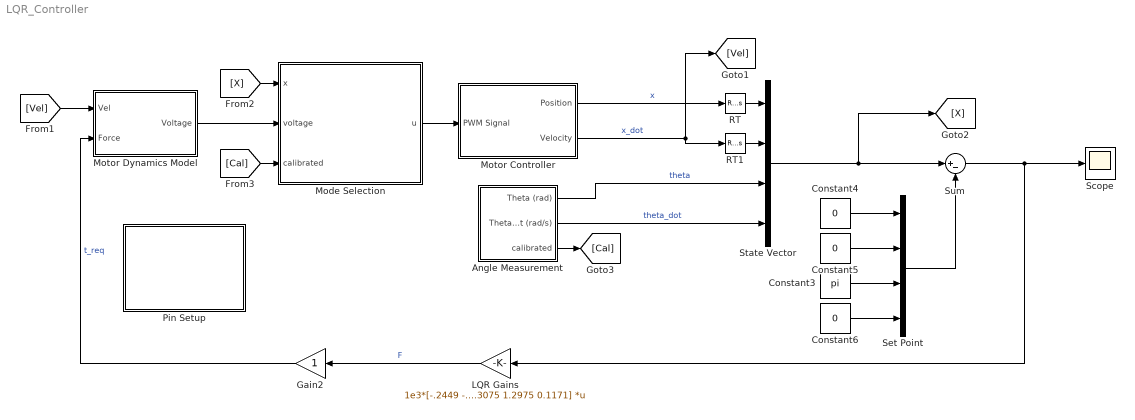
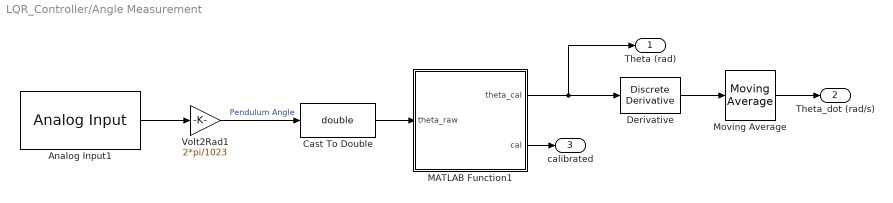
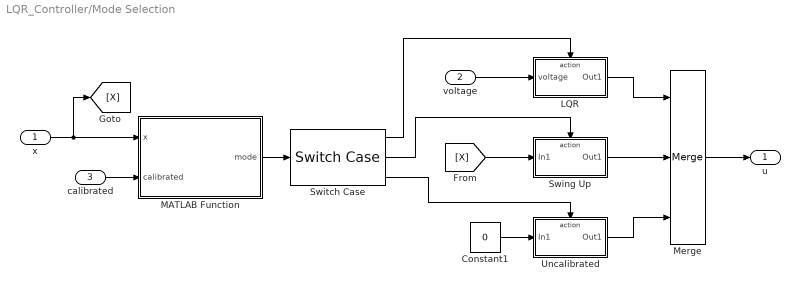
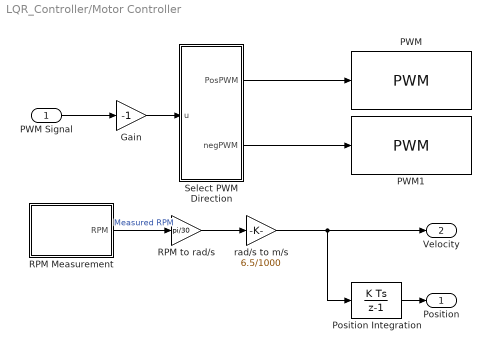
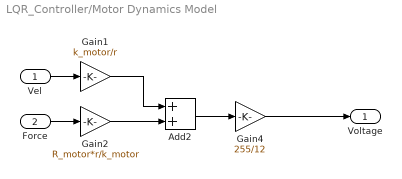
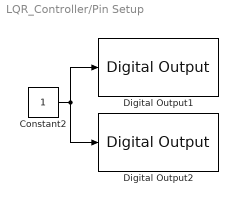
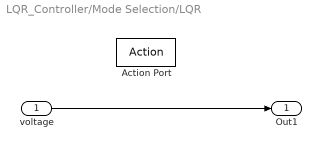
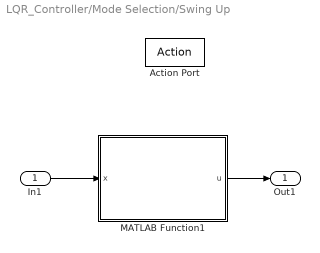
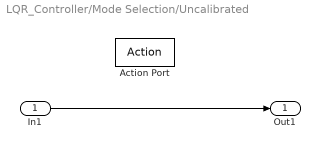
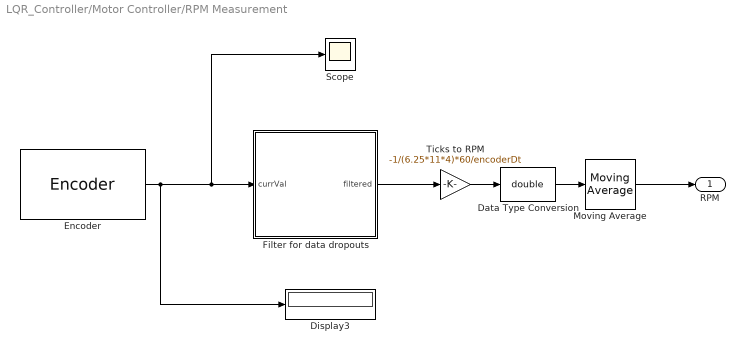
== matlab function LQR_Controller/Motor Controller/Select PWM Direction ==
function [PosPWM, negPWM] = PWMDir(u)
    if u > 0
        PosPWM = u;
        negPWM = 0;
    else
        negPWM = -u;
        PosPWM = 0;
    end
end

== matlab function LQR_Controller/Motor Controller/RPM Measurement/Filter for data dropouts ==
function filtered = filterEncoder(currVal)
%#codegen

persistent prevVal

% Initialize on first call
if isempty(prevVal)
    prevVal = currVal;
end

% Dropout detection
threshold = 200;  % Adjust based on your system

if abs(currVal - prevVal) > threshold
    % Bad reading: keep previous good value
    filtered = prevVal;
elseif abs(currVal) > 500
    % this is also a bad reading, nothing should be greater than this
    filtered = prevVal;
else
    % Good reading: update and pass through
    filtered = currVal;
    prevVal = currVal;
end

== matlab function LQR_Controller/Mode Selection/MATLAB Function ==
function mode = ControllerMode(x, calibrated)
% the controller mode selection acts on the state of the pendulum. In the
% standard stable configuration, the controller will center and perform a
% swing up. Once this is achieved, the controller moves into the LQR
% regulator for upright control.
%
% Inputs:
% x - full state vector [4x1]
% voltage - voltage control input [V]
% calibrated - calibration flag boolean

% demux the input state:

pos = x(1);
vel = x(2);
theta = x(3);
omega = x(4);

% if it's calibrated, continue
if calibrated
    % If it is close enough to the vertical position, run the LQR
    if abs(theta-pi) < 0.15 && abs(omega) < 1.5
        mode = 1;        
    else % if it is close enough to the downward position, run the swing up controller
        mode = 2;
    end
else
    mode = 3;
end

end

== matlab function LQR_Controller/Angle Measurement/MATLAB Function1 ==
function [theta_cal, cal] = calibrateAngle(theta_raw)
% Calibrates angle by averaging first N samples at startup,
% then subtracting the average offset and adding pi.
%
% Inputs:
%  - theta_raw : current raw angle measurement
%  - reset     : boolean flag to reset calibration (true at startup)
%
% Output:
%  - theta_cal : calibrated angle (aligned so initial avg = pi)

    persistent sample_count theta_sum theta0 calibrated N

    if isempty(calibrated)
        % Initialization on reset
        N = 250;                % number of samples to average
        sample_count = 0;
        theta_sum = 0;
        theta0 = 0;
        calibrated = false;
        cal = false;
    end

    if ~calibrated
        % Accumulate samples for averaging
        sample_count = sample_count + 1;
        theta_sum = theta_sum + theta_raw;
        
        if sample_count >= N
            theta0 = theta_sum / N;  % average offset
            calibrated = true;
            cal = true;
        end
    end

    if calibrated
        % After calibration, subtract offset and add pi
        theta_cal = theta_raw - theta0 + 2*pi;
        cal = true;
    else
        % During calibration phase, output raw angle
        theta_cal = theta_raw + 1/2*pi; 
        cal = false;
    end
end

== matlab function LQR_Controller/Mode Selection/Swing Up/MATLAB Function1 ==
function u = SwingUpController(x)

% demux the input state:
pos = x(1);
vel = x(2);
theta = x(3);
omega = x(4);

persistent thetaMax

if isempty(thetaMax)
    thetaMax = theta;
end

T = 1.1; % period of pendulum
t = 0.05; % acceleration time of pendulum

alphaBest = thetaMax * sin(2*pi/T*t);

u = 0;

end

/*
 * LQR_Controller.c
 *
 * Academic License - for use in teaching, academic research, and meeting
 * course requirements at degree granting institutions only.  Not for
 * government, commercial, or other organizational use.
 *
 * Code generation for model "LQR_Controller".
 *
 * Model version              : 1.59
 * Simulink Coder version : 25.1 (R2025a) 21-Nov-2024
 * C source code generated on : Mon Oct 27 21:09:59 2025
 *
 * Target selection: ert.tlc
 * Note: GRT includes extra infrastructure and instrumentation for prototyping
 * Embedded hardware selection: Atmel->AVR
 * Code generation objectives: Unspecified
 * Validation result: Not run
 */

#include "LQR_Controller.h"
#include "LQR_Controller_types.h"
#include "rtwtypes.h"
#include <string.h>
#include <math.h>
#include "LQR_Controller_private.h"
#include "rt_nonfinite.h"

/* Block signals (default storage) */
B_LQR_Controller_T LQR_Controller_B;

/* Block states (default storage) */
DW_LQR_Controller_T LQR_Controller_DW;

/* Real-time model */
static RT_MODEL_LQR_Controller_T LQR_Controller_M_;
RT_MODEL_LQR_Controller_T *const LQR_Controller_M = &LQR_Controller_M_;

/* Forward declaration for local functions */
static void LQR_Controller_SystemCore_setup(dsp_simulink_MovingAverage_LQ_T *obj);
static void LQR_Controll_SystemCore_setup_p(dsp_simulink_MovingAverage_p_T *obj);
static void rate_monotonic_scheduler(void);

/*
 * Set which subrates need to run this base step (base rate always runs).
 * This function must be called prior to calling the model step function
 * in order to remember which rates need to run this base step.  The
 * buffering of events allows for overlapping preemption.
 */
void LQR_Controller_SetEventsForThisBaseStep(boolean_T *eventFlags)
{
  /* Task runs when its counter is zero, computed via rtmStepTask macro */
  eventFlags[1] = ((boolean_T)rtmStepTask(LQR_Controller_M, 1));
  eventFlags[2] = ((boolean_T)rtmStepTask(LQR_Controller_M, 2));
}

/*
 *         This function updates active task flag for each subrate
 *         and rate transition flags for tasks that exchange data.
 *         The function assumes rate-monotonic multitasking scheduler.
 *         The function must be called at model base rate so that
 *         the generated code self-manages all its subrates and rate
 *         transition flags.
 */
static void rate_monotonic_scheduler(void)
{
  /* To ensure a deterministic data transfer between two rates,
   * data is transferred at the priority of a fast task and the frequency
   * of the slow task.  The following flags indicate when the data transfer
   * happens.  That is, a rate interaction flag is set true when both rates
   * will run, and false otherwise.
   */

  /* tid 1 shares data with slower tid rate: 2 */
  if (LQR_Controller_M->Timing.TaskCounters.TID[1] == 0) {
    LQR_Controller_M->Timing.RateInteraction.TID1_2 =
      (LQR_Controller_M->Timing.TaskCounters.TID[2] == 0);
  }

  /* Compute which subrates run during the next base time step.  Subrates
   * are an integer multiple of the base rate counter.  Therefore, the subtask
   * counter is reset when it reaches its limit (zero means run).
   */
  (LQR_Controller_M->Timing.TaskCounters.TID[1])++;
  if ((LQR_Controller_M->Timing.TaskCounters.TID[1]) > 1) {/* Sample time: [0.007s, 0.0s] */
    LQR_Controller_M->Timing.TaskCounters.TID[1] = 0;
  }

  (LQR_Controller_M->Timing.TaskCounters.TID[2])++;
  if ((LQR_Controller_M->Timing.TaskCounters.TID[2]) > 3) {/* Sample time: [0.014s, 0.0s] */
    LQR_Controller_M->Timing.TaskCounters.TID[2] = 0;
  }
}

static void LQR_Controller_SystemCore_setup(dsp_simulink_MovingAverage_LQ_T *obj)
{
  obj->isInitialized = 1L;

  /* Start for MATLABSystem: '<S1>/Moving Average' */
  obj->NumChannels = 1L;
  obj->FrameLength = 1L;
  obj->pCumSum = 0.0;
  memset(&obj->pCumSumRev[0], 0, 11U * sizeof(real_T));
  obj->pCumRevIndex = 1.0;
  obj->pModValueRev = 0.0;
  obj->isSetupComplete = true;
  obj->TunablePropsChanged = false;
}

static void LQR_Controll_SystemCore_setup_p(dsp_simulink_MovingAverage_p_T *obj)
{
  obj->isInitialized = 1L;

  /* Start for MATLABSystem: '<S13>/Moving Average' */
  obj->NumChannels = 1L;
  obj->FrameLength = 1L;
  obj->pCumSum = 0.0;
  obj->pCumSumRev[0] = 0.0;
  obj->pCumSumRev[1] = 0.0;
  obj->pCumSumRev[2] = 0.0;
  obj->pCumRevIndex = 1.0;
  obj->pModValueRev = 0.0;
  obj->isSetupComplete = true;
  obj->TunablePropsChanged = false;
}

real_T rt_roundd_snf(real_T u)
{
  real_T y;
  if (fabs(u) < 4.503599627370496E+15) {
    if (u >= 0.5) {
      y = floor(u + 0.5);
    } else if (u > -0.5) {
      y = u * 0.0;
    } else {
      y = ceil(u - 0.5);
    }
  } else {
    y = u;
  }

  return y;
}

/* Model step function for TID0 */
void LQR_Controller_step0(void)        /* Sample time: [0.0035s, 0.0s] */
{
  {                                    /* Sample time: [0.0035s, 0.0s] */
    rate_monotonic_scheduler();
  }
}

/* Model step function for TID1 */
void LQR_Controller_step1(void)        /* Sample time: [0.007s, 0.0s] */
{
  real_T Diff;
  real_T csum;
  real_T rtb_theta_cal;
  real_T z;
  uint32_T rtb_PendulumAngle;
  int16_T rtb_mode;
  uint16_T b_varargout_1;
  uint8_T tmp_0;
  boolean_T guard1;
  boolean_T rtb_cal;
  boolean_T tmp;

  /* RateTransition: '<Root>/RT' incorporates:
   *  Concatenate: '<Root>/State Vector'
   *  RateTransition generated from: '<S4>/Add2'
   */
  tmp = LQR_Controller_M->Timing.RateInteraction.TID1_2;
  if (tmp) {
    LQR_Controller_B.StateVector[0] = LQR_Controller_DW.RT_Buffer0;

    /* RateTransition: '<Root>/RT1' incorporates:
     *  Concatenate: '<Root>/State Vector'
     */
    LQR_Controller_B.StateVector[1] = LQR_Controller_DW.RT1_Buffer0;
  }

  /* End of RateTransition: '<Root>/RT' */

  /* MATLABSystem: '<S1>/Analog Input1' */
  LQR_Controller_DW.obj_g.AnalogInDriverObj.MW_ANALOGIN_HANDLE =
    MW_AnalogIn_GetHandle(14UL);
  MW_AnalogInSingle_ReadResult
    (LQR_Controller_DW.obj_g.AnalogInDriverObj.MW_ANALOGIN_HANDLE,
     &b_varargout_1, MW_ANALOGIN_UINT16);

  /* Gain: '<S1>/Volt2Rad1' incorporates:
   *  MATLABSystem: '<S1>/Analog Input1'
   * */
  rtb_PendulumAngle = (uint32_T)LQR_Controller_P.Volt2Rad1_Gain * b_varargout_1;

  /* MATLAB Function: '<S1>/MATLAB Function1' incorporates:
   *  DataTypeConversion: '<S1>/Cast To Double'
   *  Gain: '<S1>/Volt2Rad1'
   */
  guard1 = false;
  if (!LQR_Controller_DW.calibrated) {
    LQR_Controller_DW.sample_count++;

    /* DataTypeConversion: '<S1>/Cast To Double' incorporates:
     *  Gain: '<S1>/Volt2Rad1'
     */
    rtb_theta_cal = (real_T)rtb_PendulumAngle * 1.1920928955078125E-7;
    LQR_Controller_DW.theta_sum += rtb_theta_cal;
    if (LQR_Controller_DW.sample_count >= LQR_Controller_DW.N) {
      LQR_Controller_DW.theta0 = LQR_Controller_DW.theta_sum /
        LQR_Controller_DW.N;
      LQR_Controller_DW.calibrated = true;
      guard1 = true;
    } else {
      rtb_theta_cal += 1.5707963267948966;
      rtb_cal = false;
    }
  } else {
    guard1 = true;
  }

  if (guard1) {
    rtb_theta_cal = ((real_T)rtb_PendulumAngle * 1.1920928955078125E-7 -
                     LQR_Controller_DW.theta0) + 6.2831853071795862;
    rtb_cal = true;
  }

  /* End of MATLAB Function: '<S1>/MATLAB Function1' */

  /* SignalConversion generated from: '<Root>/State Vector' incorporates:
   *  Concatenate: '<Root>/State Vector'
   */
  LQR_Controller_B.StateVector[2] = rtb_theta_cal;

  /* SampleTimeMath: '<S6>/TSamp'
   *
   * About '<S6>/TSamp':
   *  y = u * K where K = 1 / ( w * Ts )
   *   */
  rtb_theta_cal *= LQR_Controller_P.TSamp_WtEt;

  /* Sum: '<S6>/Diff' incorporates:
   *  UnitDelay: '<S6>/UD'
   */
  Diff = rtb_theta_cal - LQR_Controller_DW.UD_DSTATE;

  /* MATLABSystem: '<S1>/Moving Average' */
  if (LQR_Controller_DW.obj.TunablePropsChanged) {
    LQR_Controller_DW.obj.TunablePropsChanged = false;
  }

  z = 0.0;

  /* Concatenate: '<Root>/State Vector' incorporates:
   *  MATLABSystem: '<S1>/Moving Average'
   *  SignalConversion generated from: '<S1>/Moving Average'
   */
  LQR_Controller_B.StateVector[3] = 0.0;

  /* MATLABSystem: '<S1>/Moving Average' */
  csum = LQR_Controller_DW.obj.pCumSum + Diff;
  if (LQR_Controller_DW.obj.pModValueRev == 0.0) {
    z = LQR_Controller_DW.obj.pCumSumRev[(int16_T)
      LQR_Controller_DW.obj.pCumRevIndex - 1] + csum;
  }

  LQR_Controller_DW.obj.pCumSumRev[(int16_T)LQR_Controller_DW.obj.pCumRevIndex -
    1] = Diff;
  if (LQR_Controller_DW.obj.pCumRevIndex != 11.0) {
    Diff = LQR_Controller_DW.obj.pCumRevIndex + 1.0;
  } else {
    Diff = 1.0;
    csum = 0.0;
    for (rtb_mode = 9; rtb_mode >= 0; rtb_mode--) {
      LQR_Controller_DW.obj.pCumSumRev[rtb_mode] +=
        LQR_Controller_DW.obj.pCumSumRev[rtb_mode + 1];
    }
  }

  if (LQR_Controller_DW.obj.pModValueRev == 0.0) {
    /* Concatenate: '<Root>/State Vector' incorporates:
     *  SignalConversion generated from: '<S1>/Moving Average'
     */
    LQR_Controller_B.StateVector[3] = z / 12.0;
  }

  LQR_Controller_DW.obj.pCumSum = csum;
  LQR_Controller_DW.obj.pCumRevIndex = Diff;
  if (LQR_Controller_DW.obj.pModValueRev > 0.0) {
    LQR_Controller_DW.obj.pModValueRev--;
  } else {
    LQR_Controller_DW.obj.pModValueRev = 0.0;
  }

  /* Constant: '<Root>/Constant4' */
  LQR_Controller_B.SetPoint[0] = LQR_Controller_P.Constant4_Value;

  /* Constant: '<Root>/Constant5' */
  LQR_Controller_B.SetPoint[1] = LQR_Controller_P.Constant5_Value;

  /* Constant: '<Root>/Constant3' */
  LQR_Controller_B.SetPoint[2] = LQR_Controller_P.Constant3_Value;

  /* Constant: '<Root>/Constant6' */
  LQR_Controller_B.SetPoint[3] = LQR_Controller_P.Constant6_Value;

  /* Sum: '<Root>/Sum' */
  LQR_Controller_B.SetPoint[0] = LQR_Controller_B.StateVector[0] -
    LQR_Controller_B.SetPoint[0];
  LQR_Controller_B.SetPoint[1] = LQR_Controller_B.StateVector[1] -
    LQR_Controller_B.SetPoint[1];
  LQR_Controller_B.SetPoint[2] = LQR_Controller_B.StateVector[2] -
    LQR_Controller_B.SetPoint[2];
  LQR_Controller_B.SetPoint[3] = LQR_Controller_B.StateVector[3] -
    LQR_Controller_B.SetPoint[3];

  /* MATLAB Function: '<S2>/MATLAB Function' */
  if (rtb_cal) {
    if ((fabs(LQR_Controller_B.StateVector[2] - 3.1415926535897931) < 0.15) &&
        (fabs(LQR_Controller_B.StateVector[3]) < 1.5)) {
      rtb_mode = 1;
    } else {
      rtb_mode = 2;
    }
  } else {
    rtb_mode = 3;
  }

  /* End of MATLAB Function: '<S2>/MATLAB Function' */

  /* RateTransition generated from: '<S4>/Add2' */
  if (tmp) {
    /* RateTransition generated from: '<S4>/Add2' */
    LQR_Controller_B.TmpRTBAtAdd2Inport1 =
      LQR_Controller_DW.TmpRTBAtAdd2Inport1_Buffer0;
  }

  /* SwitchCase: '<S2>/Switch Case' */
  switch ((int32_T)rtb_mode) {
   case 1L:
    /* Outputs for IfAction SubSystem: '<S2>/LQR' incorporates:
     *  ActionPort: '<S8>/Action Port'
     */
    /* SignalConversion generated from: '<S8>/voltage' incorporates:
     *  Gain: '<Root>/Gain2'
     *  Gain: '<Root>/LQR Gains'
     *  Gain: '<S4>/Gain2'
     *  Gain: '<S4>/Gain4'
     *  Sum: '<S4>/Add2'
     */
    z = ((((LQR_Controller_P.LQRGains_Gain[0] * LQR_Controller_B.SetPoint[0] +
            LQR_Controller_P.LQRGains_Gain[1] * LQR_Controller_B.SetPoint[1]) +
           LQR_Controller_P.LQRGains_Gain[2] * LQR_Controller_B.SetPoint[2]) +
          LQR_Controller_P.LQRGains_Gain[3] * LQR_Controller_B.SetPoint[3]) *
         LQR_Controller_P.Gain2_Gain * (LQR_Controller_P.R_motor *
          LQR_Controller_P.r / LQR_Controller_P.k_motor) +
         LQR_Controller_B.TmpRTBAtAdd2Inport1) * LQR_Controller_P.Gain4_Gain;

    /* End of Outputs for SubSystem: '<S2>/LQR' */
    break;

   case 2L:
    /* Outputs for IfAction SubSystem: '<S2>/Swing Up' incorporates:
     *  ActionPort: '<S10>/Action Port'
     */
    /* MATLAB Function: '<S10>/MATLAB Function1' */
    LQR_Controller_DW.thetaMax_not_empty = true;

    /* SignalConversion generated from: '<S10>/Out1' incorporates:
     *  MATLAB Function: '<S10>/MATLAB Function1'
     */
    z = 0.0;

    /* End of Outputs for SubSystem: '<S2>/Swing Up' */
    break;

   default:
    /* Outputs for IfAction SubSystem: '<S2>/Uncalibrated' incorporates:
     *  ActionPort: '<S11>/Action Port'
     */
    /* SignalConversion generated from: '<S11>/In1' incorporates:
     *  Constant: '<S2>/Constant1'
     */
    z = LQR_Controller_P.Constant1_Value;

    /* End of Outputs for SubSystem: '<S2>/Uncalibrated' */
    break;
  }

  /* End of SwitchCase: '<S2>/Switch Case' */

  /* Gain: '<S3>/Gain' */
  z *= LQR_Controller_P.Gain_Gain;

  /* MATLAB Function: '<S3>/Select PWM Direction' */
  if (z > 0.0) {
    csum = 0.0;
  } else {
    csum = -z;
    z = 0.0;
  }

  /* End of MATLAB Function: '<S3>/Select PWM Direction' */

  /* MATLABSystem: '<S3>/PWM' */
  LQR_Controller_DW.obj_d.PWMDriverObj.MW_PWM_HANDLE = MW_PWM_GetHandle(5UL);

  /* Start for MATLABSystem: '<S3>/PWM' */
  if (!(z <= 255.0)) {
    z = 255.0;
  }

  /* MATLABSystem: '<S3>/PWM' */
  MW_PWM_SetDutyCycle(LQR_Controller_DW.obj_d.PWMDriverObj.MW_PWM_HANDLE, z);

  /* MATLABSystem: '<S3>/PWM1' */
  LQR_Controller_DW.obj_e.PWMDriverObj.MW_PWM_HANDLE = MW_PWM_GetHandle(6UL);

  /* Start for MATLABSystem: '<S3>/PWM1' */
  if (!(csum <= 255.0)) {
    csum = 255.0;
  }

  /* MATLABSystem: '<S3>/PWM1' */
  MW_PWM_SetDutyCycle(LQR_Controller_DW.obj_e.PWMDriverObj.MW_PWM_HANDLE, csum);

  /* MATLABSystem: '<S5>/Digital Output1' incorporates:
   *  Constant: '<S5>/Constant2'
   */
  z = rt_roundd_snf(LQR_Controller_P.Constant2_Value);
  if (z < 256.0) {
    if (z >= 0.0) {
      tmp_0 = (uint8_T)z;
    } else {
      tmp_0 = 0U;
    }
  } else {
    tmp_0 = MAX_uint8_T;
  }

  writeDigitalPin(7, tmp_0);

  /* End of MATLABSystem: '<S5>/Digital Output1' */

  /* MATLABSystem: '<S5>/Digital Output2' */
  if (z < 256.0) {
    if (z >= 0.0) {
      tmp_0 = (uint8_T)z;
    } else {
      tmp_0 = 0U;
    }
  } else {
    tmp_0 = MAX_uint8_T;
  }

  writeDigitalPin(8, tmp_0);

  /* End of MATLABSystem: '<S5>/Digital Output2' */

  /* Update for UnitDelay: '<S6>/UD' */
  LQR_Controller_DW.UD_DSTATE = rtb_theta_cal;
}

/* Model step function for TID2 */
void LQR_Controller_step2(void)        /* Sample time: [0.014s, 0.0s] */
{
  real_T csum;
  real_T cumRevIndex;
  real_T rtb_Gain1;
  real_T z;
  int32_T qY;
  int32_T rtb_Encoder;

  /* MATLABSystem: '<S13>/Encoder' */
  if (LQR_Controller_DW.obj_l.TunablePropsChanged) {
    LQR_Controller_DW.obj_l.TunablePropsChanged = false;
  }

  MW_EncoderRead(LQR_Controller_DW.obj_l.Index, &rtb_Encoder);
  MW_EncoderReset(LQR_Controller_DW.obj_l.Index);

  /* End of MATLABSystem: '<S13>/Encoder' */
  /* MATLAB Function: '<S13>/Filter for data dropouts' */
  if (!LQR_Controller_DW.prevVal_not_empty) {
    LQR_Controller_DW.prevVal = rtb_Encoder;
    LQR_Controller_DW.prevVal_not_empty = true;
  }

  if ((rtb_Encoder >= 0L) && (LQR_Controller_DW.prevVal < rtb_Encoder -
       MAX_int32_T)) {
    qY = MAX_int32_T;
  } else if ((rtb_Encoder < 0L) && (LQR_Controller_DW.prevVal > rtb_Encoder -
              MIN_int32_T)) {
    qY = MIN_int32_T;
  } else {
    qY = rtb_Encoder - LQR_Controller_DW.prevVal;
  }

  if (qY < 0L) {
    if (qY <= MIN_int32_T) {
      qY = MAX_int32_T;
    } else {
      qY = -qY;
    }
  }

  if (qY > 200L) {
    rtb_Encoder = LQR_Controller_DW.prevVal;
  } else {
    if (rtb_Encoder < 0L) {
      if (rtb_Encoder <= MIN_int32_T) {
        qY = MAX_int32_T;
      } else {
        qY = -rtb_Encoder;
      }
    } else {
      qY = rtb_Encoder;
    }

    if (qY > 500L) {
      rtb_Encoder = LQR_Controller_DW.prevVal;
    } else {
      LQR_Controller_DW.prevVal = rtb_Encoder;
    }
  }

  /* End of MATLAB Function: '<S13>/Filter for data dropouts' */

  /* MATLABSystem: '<S13>/Moving Average' */
  if (LQR_Controller_DW.obj_m.TunablePropsChanged) {
    LQR_Controller_DW.obj_m.TunablePropsChanged = false;
  }

  z = 0.0;
  rtb_Gain1 = 0.0;

  /* DataTypeConversion: '<S13>/Data Type Conversion' incorporates:
   *  Gain: '<S13>/Ticks to RPM'
   */
  cumRevIndex = (real_T)((int64_T)LQR_Controller_P.TickstoRPM_Gain * rtb_Encoder)
    * 7.4505805969238281E-9;

  /* MATLABSystem: '<S13>/Moving Average' incorporates:
   *  DataTypeConversion: '<S13>/Data Type Conversion'
   */
  csum = cumRevIndex + LQR_Controller_DW.obj_m.pCumSum;
  if (LQR_Controller_DW.obj_m.pModValueRev == 0.0) {
    z = LQR_Controller_DW.obj_m.pCumSumRev[(int16_T)
      LQR_Controller_DW.obj_m.pCumRevIndex - 1] + csum;
  }

  LQR_Controller_DW.obj_m.pCumSumRev[(int16_T)
    LQR_Controller_DW.obj_m.pCumRevIndex - 1] = cumRevIndex;
  if (LQR_Controller_DW.obj_m.pCumRevIndex != 3.0) {
    cumRevIndex = LQR_Controller_DW.obj_m.pCumRevIndex + 1.0;
  } else {
    cumRevIndex = 1.0;
    csum = 0.0;
    LQR_Controller_DW.obj_m.pCumSumRev[1] += LQR_Controller_DW.obj_m.pCumSumRev
      [2];
    LQR_Controller_DW.obj_m.pCumSumRev[0] += LQR_Controller_DW.obj_m.pCumSumRev
      [1];
  }

  if (LQR_Controller_DW.obj_m.pModValueRev == 0.0) {
    rtb_Gain1 = z / 4.0;
  }

  LQR_Controller_DW.obj_m.pCumSum = csum;
  LQR_Controller_DW.obj_m.pCumRevIndex = cumRevIndex;
  if (LQR_Controller_DW.obj_m.pModValueRev > 0.0) {
    LQR_Controller_DW.obj_m.pModValueRev--;
  } else {
    LQR_Controller_DW.obj_m.pModValueRev = 0.0;
  }

  /* Gain: '<S3>/rad//s to m//s' incorporates:
   *  Gain: '<S3>/RPM to rad//s'
   *  MATLABSystem: '<S13>/Moving Average'
   */
  z = LQR_Controller_P.RPMtorads_Gain * rtb_Gain1 *
    LQR_Controller_P.radstoms_Gain;

  /* Gain: '<S4>/Gain1' */
  rtb_Gain1 = LQR_Controller_P.k_motor / LQR_Controller_P.r * z;

  /* RateTransition generated from: '<S4>/Add2' */
  LQR_Controller_DW.TmpRTBAtAdd2Inport1_Buffer0 = rtb_Gain1;

  /* RateTransition: '<Root>/RT' */
  LQR_Controller_DW.RT_Buffer0 = LQR_Controller_DW.PositionIntegration_DSTATE;

  /* RateTransition: '<Root>/RT1' */
  LQR_Controller_DW.RT1_Buffer0 = z;

  /* Update for DiscreteIntegrator: '<S3>/Position Integration' */
  LQR_Controller_DW.PositionIntegration_DSTATE +=
    LQR_Controller_P.PositionIntegration_gainval * z;

  /* Update for DiscreteIntegrator: '<S3>/Position Integration' */
  if (LQR_Controller_DW.PositionIntegration_DSTATE >
      LQR_Controller_P.PositionIntegration_UpperSat) {
    /* Update for DiscreteIntegrator: '<S3>/Position Integration' */
    LQR_Controller_DW.PositionIntegration_DSTATE =
      LQR_Controller_P.PositionIntegration_UpperSat;
  } else if (LQR_Controller_DW.PositionIntegration_DSTATE <
             LQR_Controller_P.PositionIntegration_LowerSat) {
    /* Update for DiscreteIntegrator: '<S3>/Position Integration' */
    LQR_Controller_DW.PositionIntegration_DSTATE =
      LQR_Controller_P.PositionIntegration_LowerSat;
  }
}
